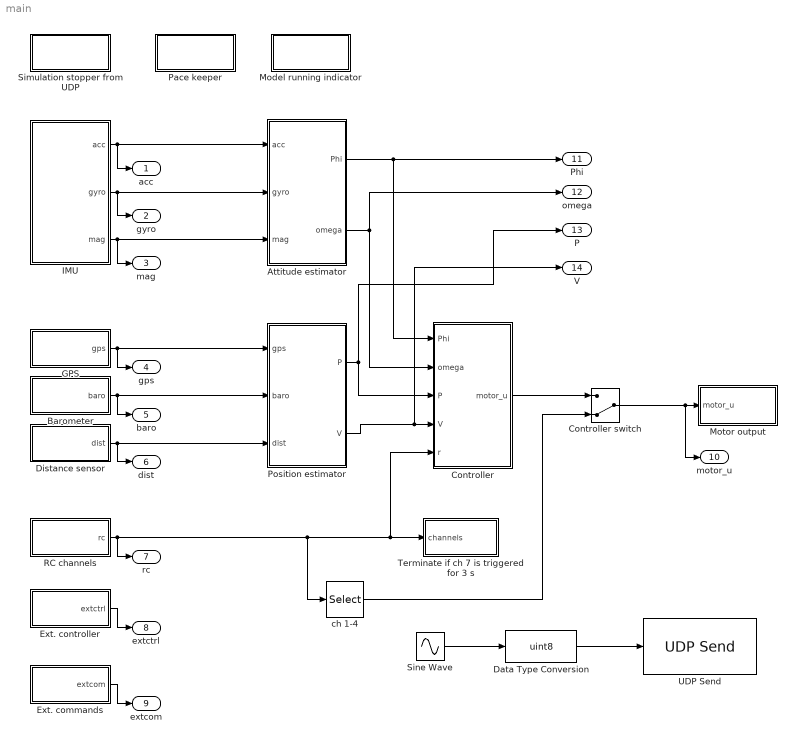
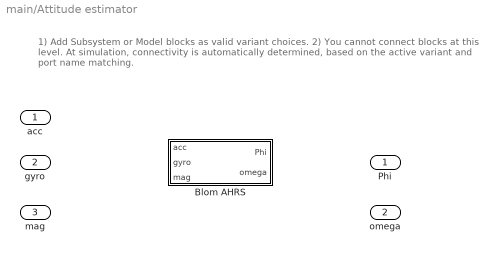
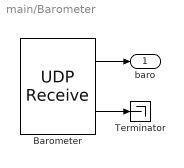
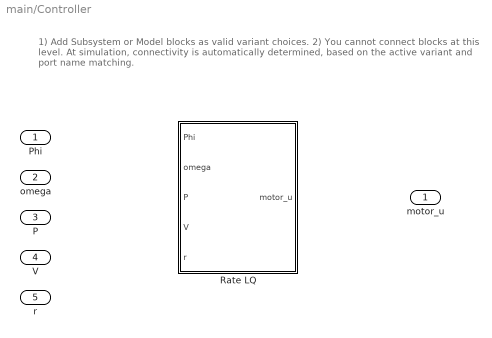
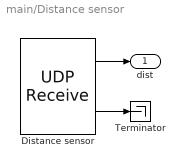
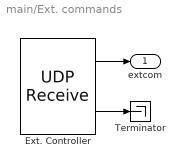
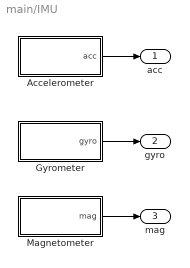
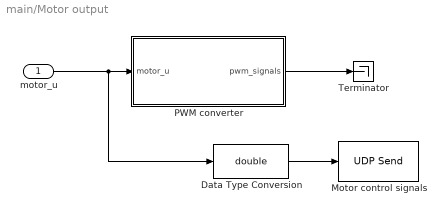
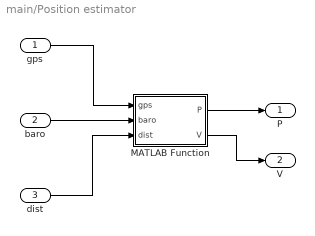
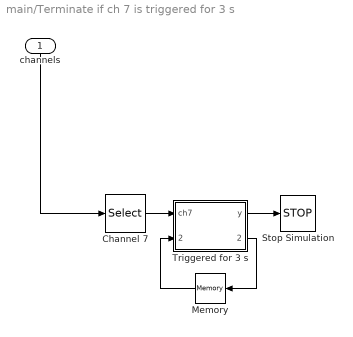
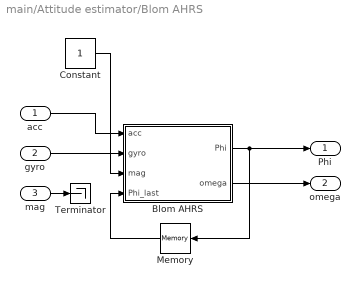
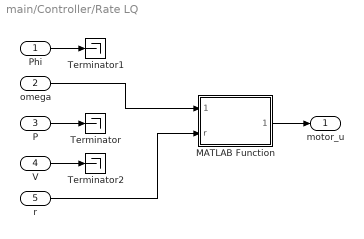
== system main/Ext. controller ==
  Ext. Controller : dspnetwork/UDP Receive  localURL='0.0.0.0'  localPort=22102  remoteURL='0.0.0.0'  remotePort=-1  recvBufferSize=8192  dims=4  signalDatatype=double  isVarSize=off  showBlockingTime=on  blockingTime=0  sampletime=time_step  blockPlatform=BeagleBone
  Terminator : Terminator
  extctrl : Outport
  wires:
  Ext. Controller/2 -> Terminator/1
  Ext. Controller/1 -> extctrl/1

== system main/GPS ==
  GPS : dspnetwork/UDP Receive  localURL='0.0.0.0'  localPort=22005  remoteURL='0.0.0.0'  remotePort=-1  recvBufferSize=8192  dims=3  signalDatatype=double  isVarSize=off  showBlockingTime=on  blockingTime=0  sampletime=time_step  blockPlatform=BeagleBone
  Terminator : Terminator
  gps : Outport
  wires:
  GPS/2 -> Terminator/1
  GPS/1 -> gps/1

== system main/Model running indicator ==
  Data Type Conversion : DataTypeConversion  OutDataTypeStr=boolean
  Model running indicator : ec_arm_cortex_a_lib/LED  board=BeagleBone Black  led=USR0  blockPlatform=BeagleBone
  Pulse Generator : DiscretePulseGenerator  PulseType=Time based  Period=.2  PulseWidth=50
  wires:
  Data Type Conversion/1 -> Model running indicator/1
  Pulse Generator/1 -> Data Type Conversion/1

== system main/Pace keeper ==
  Pac keeper : dspnetwork/UDP Send  remoteURL='127.0.0.1'  remotePort=25001  localURL='255.255.255.255'  localPortSource=Automatically determine  localPort=-1  sampletime=-1  blockPlatform=BeagleBone  separateLengthPort=0
  Pace constant : Constant  OutDataTypeStr=int8
  wires:
  Pace constant/1 -> Pac keeper/1

== system main/RC channels ==
  RC channels : dspnetwork/UDP Receive  localURL='0.0.0.0'  localPort=22101  remoteURL='0.0.0.0'  remotePort=-1  recvBufferSize=8192  dims=13  signalDatatype=double  isVarSize=off  showBlockingTime=on  blockingTime=0  sampletime=time_step  blockPlatform=BeagleBone
  Terminator : Terminator
  rc : Outport
  wires:
  RC channels/2 -> Terminator/1
  RC channels/1 -> rc/1

== system main/Simulation stopper from UDP ==
  Simulation stop : dspnetwork/UDP Receive  localURL='0.0.0.0'  localPort=26001  remoteURL='0.0.0.0'  remotePort=-1  recvBufferSize=8192  dims=1  signalDatatype=boolean  isVarSize=off  showBlockingTime=on  blockingTime=0  sampletime=0.02  blockPlatform=BeagleBone
  Stop Simulation : Stop
  Terminator2 : Terminator
  wires:
  Simulation stop/1 -> Stop Simulation/1
  Simulation stop/2 -> Terminator2/1

== system main/IMU/Accelerometer ==
  Accelerometer : dspnetwork/UDP Receive  localURL='0.0.0.0'  localPort=22001  remoteURL='0.0.0.0'  remotePort=-1  recvBufferSize=8192  dims=3  signalDatatype=double  isVarSize=off  showBlockingTime=on  blockingTime=0  sampletime=time_step  blockPlatform=BeagleBone
  Terminator : Terminator
  acc : Outport
  wires:
  Accelerometer/2 -> Terminator/1
  Accelerometer/1 -> acc/1

== system main/IMU/Gyrometer ==
  Gyrometer : dspnetwork/UDP Receive  localURL='0.0.0.0'  localPort=22002  remoteURL='0.0.0.0'  remotePort=-1  recvBufferSize=8192  dims=3  signalDatatype=double  isVarSize=off  showBlockingTime=on  blockingTime=0  sampletime=time_step  blockPlatform=BeagleBone
  Terminator : Terminator
  gyro : Outport
  wires:
  Gyrometer/2 -> Terminator/1
  Gyrometer/1 -> gyro/1

== system main/IMU/Magnetometer ==
  Magnetometer : dspnetwork/UDP Receive  localURL='0.0.0.0'  localPort=22003  remoteURL='0.0.0.0'  remotePort=-1  recvBufferSize=8192  dims=3  signalDatatype=double  isVarSize=off  showBlockingTime=on  blockingTime=0  sampletime=time_step  blockPlatform=BeagleBone
  Terminator : Terminator
  mag : Outport
  wires:
  Magnetometer/2 -> Terminator/1
  Magnetometer/1 -> mag/1

== matlab function main/Attitude estimator/Blom AHRS/Blom AHRS ==
function [Phi, omega] = fcn(acc, gyro, mag, Phi_last)
%#codegen

pg = .98;
pa = 1-pg;
dt = 0.01;

ay = acc(2);
az = acc(3);
gx = gyro(1);


Phi = [0 0 0]';
Phi(1) = pg*(Phi_last(1) - gx*dt) + pa*((360/pi)*atan2(ay,-az) - Phi_last(1));

omega = gyro;

== matlab function main/Position estimator/MATLAB Function ==
function [P, V] = fcn(gps, baro, dist)
%#codegen

P = [0 0 0]';
V = [0 0 0]';

== matlab function main/Controller/Rate LQ/MATLAB Function ==
function motor_u = fcn(omega, r)
%#codegen

motor_u = [0 0 0 0]';

== matlab function main/Motor output/PWM converter ==
function pwm_signals = fcn(motor_u)
%#codegen
pulse_min = 1100*1e-6;
pulse_max = 1930*1e-6;
pulse_f = 50;

pwm_signals = pulse_f * (pulse_min + motor_u .* (pulse_max - pulse_min));

== matlab function main/Terminate if ch 7
is triggered for 3 s/Triggered for 3 s ==
function [y, time_up] = fcn(ch7, time_up_last)
y = 0;
time_step = 0.02;
if ch7 > 0.5
    time_up = time_up_last + time_step;
    if time_up > 3
        y = 1;
    end
else
    time_up = 0;
end

/*
 * Academic License - for use in teaching, academic research, and meeting
 * course requirements at degree granting institutions only.  Not for
 * government, commercial, or other organizational use.
 *
 * File: main.c
 *
 * Code generated for Simulink model 'main'.
 *
 * Model version                  : 1.96
 * Simulink Coder version         : 8.8 (R2015a) 09-Feb-2015
 * C/C++ source code generated on : Thu Nov 05 11:09:24 2015
 *
 * Target selection: ert.tlc
 * Embedded hardware selection: ARM Compatible->ARM Cortex
 * Code generation objectives: Unspecified
 * Validation result: Not run
 */

#include "main.h"
#include "main_private.h"

/* Block signals (auto storage) */
B_main_T main_B;

/* Block states (auto storage) */
DW_main_T main_DW;

/* External outputs (root outports fed by signals with auto storage) */
ExtY_main_T main_Y;

/* Real-time model */
RT_MODEL_main_T main_M_;
RT_MODEL_main_T *const main_M = &main_M_;
real_T rt_atan2d_snf(real_T u0, real_T u1)
{
  real_T y;
  int32_T u0_0;
  int32_T u1_0;
  if (rtIsNaN(u0) || rtIsNaN(u1)) {
    y = (rtNaN);
  } else if (rtIsInf(u0) && rtIsInf(u1)) {
    if (u0 > 0.0) {
      u0_0 = 1;
    } else {
      u0_0 = -1;
    }

    if (u1 > 0.0) {
      u1_0 = 1;
    } else {
      u1_0 = -1;
    }

    y = atan2(u0_0, u1_0);
  } else if (u1 == 0.0) {
    if (u0 > 0.0) {
      y = RT_PI / 2.0;
    } else if (u0 < 0.0) {
      y = -(RT_PI / 2.0);
    } else {
      y = 0.0;
    }
  } else {
    y = atan2(u0, u1);
  }

  return y;
}

/* Model step function */
void main_step(void)
{
  char_T *sErr;
  int32_T samplesRead;
  int32_T samplesRead_0;
  int32_T samplesRead_1;
  int32_T samplesRead_2;
  int32_T samplesRead_3;
  int32_T samplesRead_4;
  int32_T samplesRead_5;
  int32_T samplesRead_6;
  int32_T samplesRead_7;
  int32_T samplesRead_8;
  real_T rtb_Memory_idx_0;

  /* S-Function (sdspFromNetwork): '<S20>/Accelerometer' */
  sErr = GetErrorBuffer(&main_DW.Accelerometer_NetworkLib[0U]);
  samplesRead = 3;
  LibOutputs_Network(&main_DW.Accelerometer_NetworkLib[0U], &main_Y.acc[0U],
                     &samplesRead);
  if (*sErr != 0) {
    rtmSetErrorStatus(main_M, sErr);
    rtmSetStopRequested(main_M, 1);
  }

  main_B.Accelerometer_o2 = (uint16_T)samplesRead;
  if (samplesRead == 0) {
    main_Y.acc[0] = 0.0;
    main_Y.acc[1] = 0.0;
    main_Y.acc[2] = 0.0;
  }

  /* End of S-Function (sdspFromNetwork): '<S20>/Accelerometer' */

  /* S-Function (sdspFromNetwork): '<S21>/Gyrometer' */
  sErr = GetErrorBuffer(&main_DW.Gyrometer_NetworkLib[0U]);
  samplesRead_0 = 3;
  LibOutputs_Network(&main_DW.Gyrometer_NetworkLib[0U], &main_Y.gyro[0U],
                     &samplesRead_0);
  if (*sErr != 0) {
    rtmSetErrorStatus(main_M, sErr);
    rtmSetStopRequested(main_M, 1);
  }

  main_B.Gyrometer_o2 = (uint16_T)samplesRead_0;
  if (samplesRead_0 == 0) {
    main_Y.gyro[0] = 0.0;
    main_Y.gyro[1] = 0.0;
    main_Y.gyro[2] = 0.0;
  }

  /* End of S-Function (sdspFromNetwork): '<S21>/Gyrometer' */

  /* S-Function (sdspFromNetwork): '<S22>/Magnetometer' */
  sErr = GetErrorBuffer(&main_DW.Magnetometer_NetworkLib[0U]);
  samplesRead_1 = 3;
  LibOutputs_Network(&main_DW.Magnetometer_NetworkLib[0U], &main_Y.mag[0U],
                     &samplesRead_1);
  if (*sErr != 0) {
    rtmSetErrorStatus(main_M, sErr);
    rtmSetStopRequested(main_M, 1);
  }

  main_B.Magnetometer_o2 = (uint16_T)samplesRead_1;
  if (samplesRead_1 == 0) {
    main_Y.mag[0] = 0.0;
    main_Y.mag[1] = 0.0;
    main_Y.mag[2] = 0.0;
  }

  /* End of S-Function (sdspFromNetwork): '<S22>/Magnetometer' */

  /* S-Function (sdspFromNetwork): '<S7>/GPS' */
  sErr = GetErrorBuffer(&main_DW.GPS_NetworkLib[0U]);
  samplesRead_2 = 3;
  LibOutputs_Network(&main_DW.GPS_NetworkLib[0U], &main_Y.gps[0U],
                     &samplesRead_2);
  if (*sErr != 0) {
    rtmSetErrorStatus(main_M, sErr);
    rtmSetStopRequested(main_M, 1);
  }

  main_B.GPS_o2 = (uint16_T)samplesRead_2;
  if (samplesRead_2 == 0) {
    main_Y.gps[0] = 0.0;
    main_Y.gps[1] = 0.0;
    main_Y.gps[2] = 0.0;
  }

  /* End of S-Function (sdspFromNetwork): '<S7>/GPS' */

  /* S-Function (sdspFromNetwork): '<S2>/Barometer' */
  sErr = GetErrorBuffer(&main_DW.Barometer_NetworkLib[0U]);
  samplesRead_3 = 3;
  LibOutputs_Network(&main_DW.Barometer_NetworkLib[0U], &main_Y.baro[0U],
                     &samplesRead_3);
  if (*sErr != 0) {
    rtmSetErrorStatus(main_M, sErr);
    rtmSetStopRequested(main_M, 1);
  }

  main_B.Barometer_o2 = (uint16_T)samplesRead_3;
  if (samplesRead_3 == 0) {
    main_Y.baro[0] = 0.0;
    main_Y.baro[1] = 0.0;
    main_Y.baro[2] = 0.0;
  }

  /* End of S-Function (sdspFromNetwork): '<S2>/Barometer' */

  /* S-Function (sdspFromNetwork): '<S4>/Distance sensor' */
  sErr = GetErrorBuffer(&main_DW.Distancesensor_NetworkLib[0U]);
  samplesRead_4 = 3;
  LibOutputs_Network(&main_DW.Distancesensor_NetworkLib[0U], &main_Y.dist[0U],
                     &samplesRead_4);
  if (*sErr != 0) {
    rtmSetErrorStatus(main_M, sErr);
    rtmSetStopRequested(main_M, 1);
  }

  main_B.Distancesensor_o2 = (uint16_T)samplesRead_4;
  if (samplesRead_4 == 0) {
    main_Y.dist[0] = 0.0;
    main_Y.dist[1] = 0.0;
    main_Y.dist[2] = 0.0;
  }

  /* End of S-Function (sdspFromNetwork): '<S4>/Distance sensor' */

  /* S-Function (sdspFromNetwork): '<S13>/RC channels' */
  sErr = GetErrorBuffer(&main_DW.RCchannels_NetworkLib[0U]);
  samplesRead_5 = 13;
  LibOutputs_Network(&main_DW.RCchannels_NetworkLib[0U], &main_Y.rc[0U],
                     &samplesRead_5);
  if (*sErr != 0) {
    rtmSetErrorStatus(main_M, sErr);
    rtmSetStopRequested(main_M, 1);
  }

  main_B.RCchannels_o2 = (uint16_T)samplesRead_5;
  if (samplesRead_5 == 0) {
    memset(&main_Y.rc[0], 0, 13U * sizeof(real_T));
  }

  /* End of S-Function (sdspFromNetwork): '<S13>/RC channels' */

  /* Memory: '<S16>/Memory' */
  rtb_Memory_idx_0 = main_DW.Memory_PreviousInput[0];

  /* MATLAB Function: '<S16>/Blom AHRS' */
  /* MATLAB Function 'Attitude estimator/Blom AHRS/Blom AHRS': '<S17>:1' */
  /* '<S17>:1:8' */
  /* '<S17>:1:9' */
  /* '<S17>:1:10' */
  /* '<S17>:1:13' */
  /* '<S17>:1:14' */
  main_B.rtb_Phi_idx_0 = (rtb_Memory_idx_0 - main_Y.gyro[0] * 0.01) * 0.98 +
    (114.59155902616465 * rt_atan2d_snf(main_Y.acc[1], -main_Y.acc[2]) -
     rtb_Memory_idx_0) * 0.020000000000000018;

  /* Outport: '<Root>/omega' incorporates:
   *  MATLAB Function: '<S16>/Blom AHRS'
   */
  /* '<S17>:1:16' */
  main_Y.omega[0] = main_Y.gyro[0];
  main_Y.omega[1] = main_Y.gyro[1];
  main_Y.omega[2] = main_Y.gyro[2];

  /* ManualSwitch: '<Root>/Controller switch' */
  /* MATLAB Function 'Controller/Rate LQ/MATLAB Function': '<S19>:1' */
  /* '<S19>:1:4' */
  if (main_P.Controllerswitch_CurrentSetting == 1) {
    /* Outport: '<Root>/motor_u' incorporates:
     *  MATLAB Function: '<S18>/MATLAB Function'
     */
    main_Y.motor_u[0] = 0.0;
    main_Y.motor_u[1] = 0.0;
    main_Y.motor_u[2] = 0.0;
    main_Y.motor_u[3] = 0.0;
  } else {
    /* Outport: '<Root>/motor_u' */
    main_Y.motor_u[0] = main_Y.rc[0];
    main_Y.motor_u[1] = main_Y.rc[1];
    main_Y.motor_u[2] = main_Y.rc[2];
    main_Y.motor_u[3] = main_Y.rc[3];
  }

  /* End of ManualSwitch: '<Root>/Controller switch' */

  /* Outport: '<Root>/Phi' */
  main_Y.Phi[0] = main_B.rtb_Phi_idx_0;
  main_Y.Phi[1] = 0.0;
  main_Y.Phi[2] = 0.0;

  /* Outport: '<Root>/P' incorporates:
   *  MATLAB Function: '<S12>/MATLAB Function'
   */
  /* MATLAB Function 'Position estimator/MATLAB Function': '<S24>:1' */
  /* '<S24>:1:4' */
  /* '<S24>:1:5' */
  main_Y.P[0] = 0.0;
  main_Y.P[1] = 0.0;
  main_Y.P[2] = 0.0;

  /* Outport: '<Root>/V' incorporates:
   *  MATLAB Function: '<S12>/MATLAB Function'
   */
  main_Y.V[0] = 0.0;
  main_Y.V[1] = 0.0;
  main_Y.V[2] = 0.0;

  /* MATLAB Function: '<S15>/Triggered for 3 s' incorporates:
   *  Memory: '<S15>/Memory'
   */
  /* MATLAB Function 'Motor output/PWM converter': '<S23>:1' */
  /* '<S23>:1:3' */
  /* '<S23>:1:4' */
  /* '<S23>:1:7' */
  /* MATLAB Function 'Terminate if ch 7 is triggered for 3 s/Triggered for 3 s': '<S25>:1' */
  /* '<S25>:1:2' */
  rtb_Memory_idx_0 = 0.0;

  /* '<S25>:1:3' */
  if (main_Y.rc[6] > 0.5) {
    /* '<S25>:1:4' */
    /* '<S25>:1:5' */
    main_B.time_up = main_DW.Memory_PreviousInput_e + 0.02;
    if (main_DW.Memory_PreviousInput_e + 0.02 > 3.0) {
      /* '<S25>:1:6' */
      /* '<S25>:1:7' */
      rtb_Memory_idx_0 = 1.0;
    }
  } else {
    /* '<S25>:1:10' */
    main_B.time_up = 0.0;
  }

  /* Stop: '<S15>/Stop Simulation' */
  if (rtb_Memory_idx_0 != 0.0) {
    rtmSetStopRequested(main_M, 1);
  }

  /* End of Stop: '<S15>/Stop Simulation' */

  /* S-Function (sdspFromNetwork): '<S6>/Ext. Controller' */
  sErr = GetErrorBuffer(&main_DW.ExtController_NetworkLib[0U]);
  samplesRead_6 = 4;
  LibOutputs_Network(&main_DW.ExtController_NetworkLib[0U], &main_Y.extctrl[0U],
                     &samplesRead_6);
  if (*sErr != 0) {
    rtmSetErrorStatus(main_M, sErr);
    rtmSetStopRequested(main_M, 1);
  }

  main_B.ExtController_o2 = (uint16_T)samplesRead_6;
  if (samplesRead_6 == 0) {
    main_Y.extctrl[0] = 0.0;
    main_Y.extctrl[1] = 0.0;
    main_Y.extctrl[2] = 0.0;
    main_Y.extctrl[3] = 0.0;
  }

  /* End of S-Function (sdspFromNetwork): '<S6>/Ext. Controller' */

  /* S-Function (sdspFromNetwork): '<S5>/Ext. Controller' */
  sErr = GetErrorBuffer(&main_DW.ExtController_NetworkLib_a[0U]);
  samplesRead_7 = 2;
  LibOutputs_Network(&main_DW.ExtController_NetworkLib_a[0U], &main_Y.extcom[0U],
                     &samplesRead_7);
  if (*sErr != 0) {
    rtmSetErrorStatus(main_M, sErr);
    rtmSetStopRequested(main_M, 1);
  }

  main_B.ExtController_o2_m = (uint16_T)samplesRead_7;
  if (samplesRead_7 == 0) {
    main_Y.extcom[0] = 0.0;
    main_Y.extcom[1] = 0.0;
  }

  /* End of S-Function (sdspFromNetwork): '<S5>/Ext. Controller' */

  /* DataTypeConversion: '<Root>/Data Type Conversion' incorporates:
   *  Sin: '<Root>/Sine Wave'
   */
  rtb_Memory_idx_0 = floor(sin(((real_T)main_DW.counter + main_P.SineWave_Offset)
    * 2.0 * 3.1415926535897931 / main_P.SineWave_NumSamp) * main_P.SineWave_Amp
    + main_P.SineWave_Bias);
  if (rtIsNaN(rtb_Memory_idx_0) || rtIsInf(rtb_Memory_idx_0)) {
    rtb_Memory_idx_0 = 0.0;
  } else {
    rtb_Memory_idx_0 = fmod(rtb_Memory_idx_0, 256.0);
  }

  main_B.DataTypeConversion = (uint8_T)(rtb_Memory_idx_0 < 0.0 ? (int32_T)
    (uint8_T)-(int8_T)(uint8_T)-rtb_Memory_idx_0 : (int32_T)(uint8_T)
    rtb_Memory_idx_0);

  /* End of DataTypeConversion: '<Root>/Data Type Conversion' */

  /* DiscretePulseGenerator: '<S9>/Pulse Generator' */
  rtb_Memory_idx_0 = (main_DW.clockTickCounter < main_P.PulseGenerator_Duty) &&
    (main_DW.clockTickCounter >= 0) ? main_P.PulseGenerator_Amp : 0.0;
  if (main_DW.clockTickCounter >= main_P.PulseGenerator_Period - 1.0) {
    main_DW.clockTickCounter = 0;
  } else {
    main_DW.clockTickCounter++;
  }

  /* End of DiscretePulseGenerator: '<S9>/Pulse Generator' */

  /* S-Function (armcortexa_LedWrite_sfcn): '<S9>/Model running indicator' incorporates:
   *  DataTypeConversion: '<S9>/Data Type Conversion'
   */
  MW_ledWrite(main_P.Modelrunningindicator_p1, rtb_Memory_idx_0 != 0.0);

  /* S-Function (sdspFromNetwork): '<S14>/Simulation stop' */
  sErr = GetErrorBuffer(&main_DW.Simulationstop_NetworkLib[0U]);
  samplesRead_8 = 1;
  LibOutputs_Network(&main_DW.Simulationstop_NetworkLib[0U],
                     &main_B.Simulationstop_o1, &samplesRead_8);
  if (*sErr != 0) {
    rtmSetErrorStatus(main_M, sErr);
    rtmSetStopRequested(main_M, 1);
  }

  main_B.Simulationstop_o2 = (uint16_T)samplesRead_8;
  if (samplesRead_8 == 0) {
    main_B.Simulationstop_o1 = false;
  }

  /* End of S-Function (sdspFromNetwork): '<S14>/Simulation stop' */

  /* Stop: '<S14>/Stop Simulation' */
  if (main_B.Simulationstop_o1) {
    rtmSetStopRequested(main_M, 1);
  }

  /* End of Stop: '<S14>/Stop Simulation' */

  /* Update for Memory: '<S16>/Memory' */
  main_DW.Memory_PreviousInput[0] = main_B.rtb_Phi_idx_0;
  main_DW.Memory_PreviousInput[1] = 0.0;
  main_DW.Memory_PreviousInput[2] = 0.0;

  /* Update for S-Function (sdspToNetwork): '<S10>/Motor control signals' */
  sErr = GetErrorBuffer(&main_DW.Motorcontrolsignals_NetworkLib[0U]);
  LibUpdate_Network(&main_DW.Motorcontrolsignals_NetworkLib[0U],
                    &main_Y.motor_u[0U], 4);
  if (*sErr != 0) {
    rtmSetErrorStatus(main_M, sErr);
    rtmSetStopRequested(main_M, 1);
  }

  /* End of Update for S-Function (sdspToNetwork): '<S10>/Motor control signals' */

  /* Update for Memory: '<S15>/Memory' incorporates:
   *  MATLAB Function: '<S15>/Triggered for 3 s'
   */
  main_DW.Memory_PreviousInput_e = main_B.time_up;

  /* Update for Sin: '<Root>/Sine Wave' */
  main_DW.counter++;
  if (main_DW.counter == main_P.SineWave_NumSamp) {
    main_DW.counter = 0;
  }

  /* End of Update for Sin: '<Root>/Sine Wave' */

  /* Update for S-Function (sdspToNetwork): '<Root>/UDP Send' */
  sErr = GetErrorBuffer(&main_DW.UDPSend_NetworkLib[0U]);
  LibUpdate_Network(&main_DW.UDPSend_NetworkLib[0U], &main_B.DataTypeConversion,
                    1);
  if (*sErr != 0) {
    rtmSetErrorStatus(main_M, sErr);
    rtmSetStopRequested(main_M, 1);
  }

  /* End of Update for S-Function (sdspToNetwork): '<Root>/UDP Send' */

  /* Update for S-Function (sdspToNetwork): '<S11>/Pac keeper' incorporates:
   *  Constant: '<S11>/Pace constant'
   */
  sErr = GetErrorBuffer(&main_DW.Packeeper_NetworkLib[0U]);
  LibUpdate_Network(&main_DW.Packeeper_NetworkLib[0U],
                    &main_P.Paceconstant_Value, 1);
  if (*sErr != 0) {
    rtmSetErrorStatus(main_M, sErr);
    rtmSetStopRequested(main_M, 1);
  }

  /* End of Update for S-Function (sdspToNetwork): '<S11>/Pac keeper' */

  /* Matfile logging */
  rt_UpdateTXYLogVars(main_M->rtwLogInfo, (&main_M->Timing.taskTime0));

  /* signal main to stop simulation */
  {                                    /* Sample time: [0.02s, 0.0s] */
    if ((rtmGetTFinal(main_M)!=-1) &&
        !((rtmGetTFinal(main_M)-main_M->Timing.taskTime0) >
          main_M->Timing.taskTime0 * (DBL_EPSILON))) {
      rtmSetErrorStatus(main_M, "Simulation finished");
    }
  }

  /* Update absolute time for base rate */
  /* The "clockTick0" counts the number of times the code of this task has
   * been executed. The absolute time is the multiplication of "clockTick0"
   * and "Timing.stepSize0". Size of "clockTick0" ensures timer will not
   * overflow during the application lifespan selected.
   * Timer of this task consists of two 32 bit unsigned integers.
   * The two integers represent the low bits Timing.clockTick0 and the high bits
   * Timing.clockTickH0. When the low bit overflows to 0, the high bits increment.
   */
  if (!(++main_M->Timing.clockTick0)) {
    ++main_M->Timing.clockTickH0;
  }

  main_M->Timing.taskTime0 = main_M->Timing.clockTick0 *
    main_M->Timing.stepSize0 + main_M->Timing.clockTickH0 *
    main_M->Timing.stepSize0 * 4294967296.0;
}
